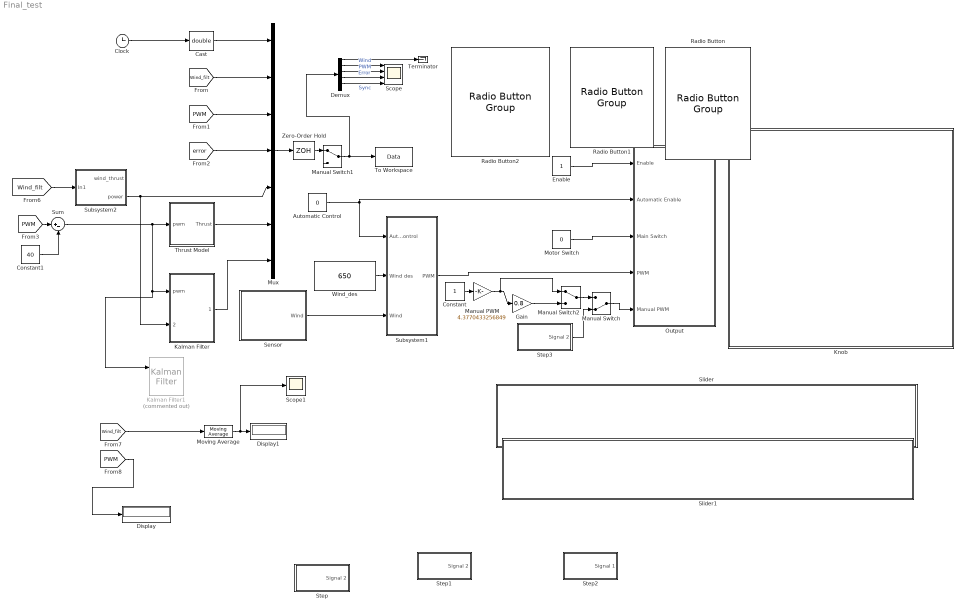
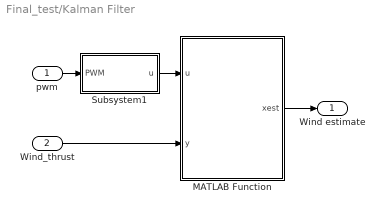
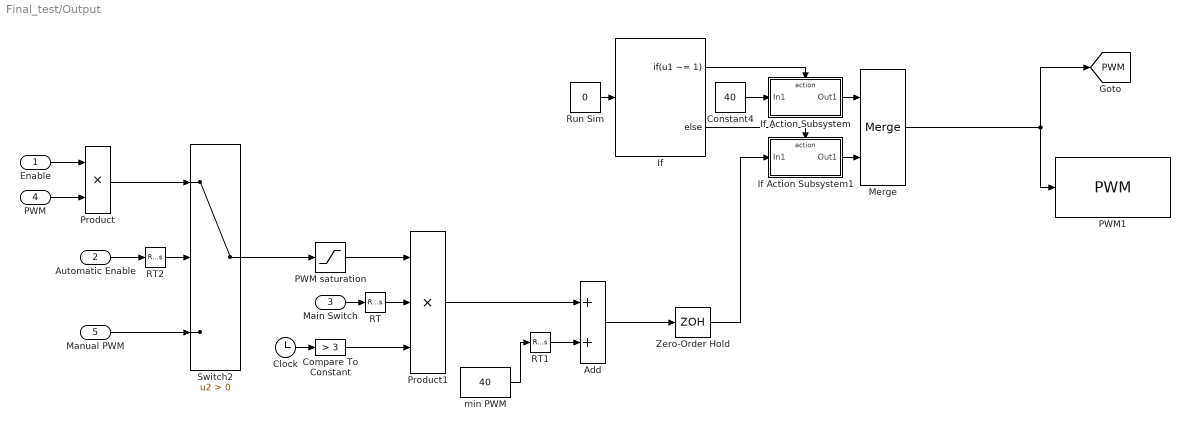
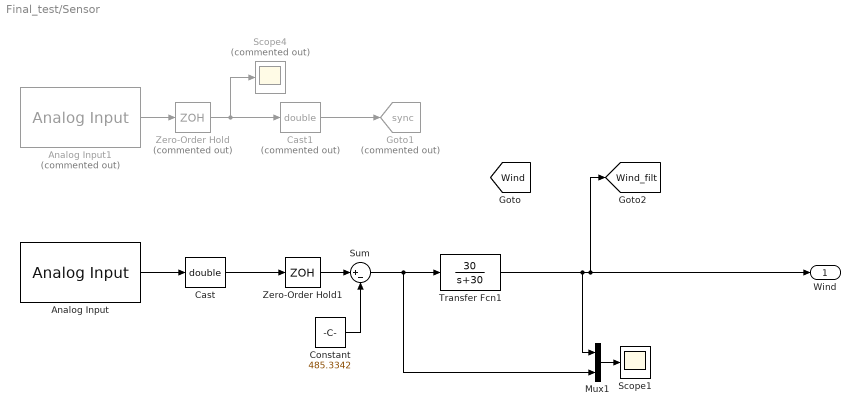
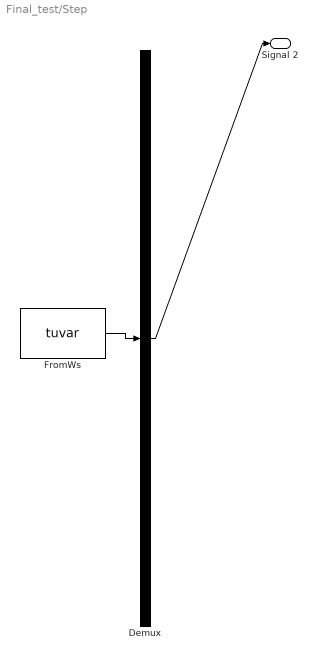
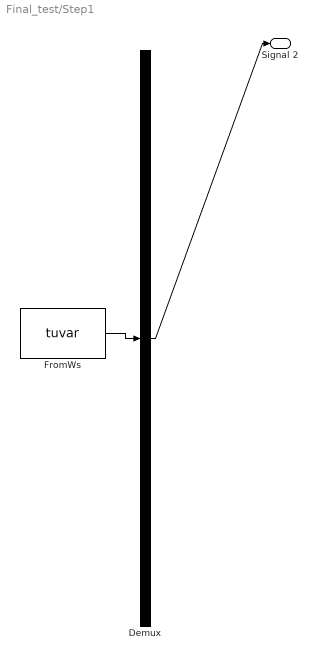
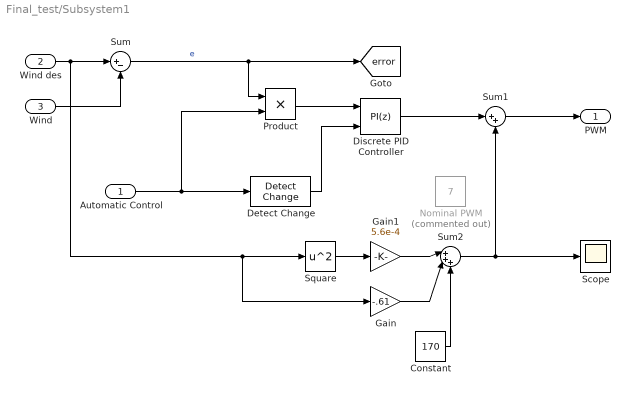
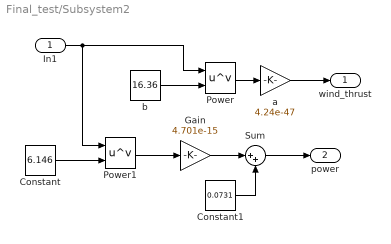
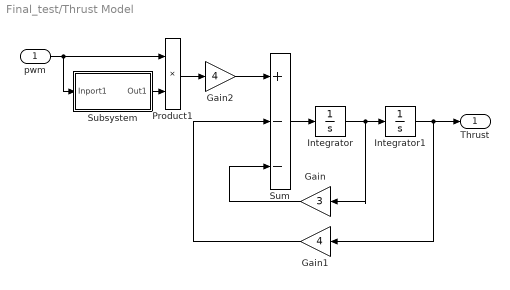
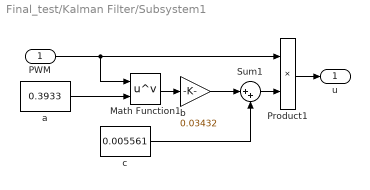
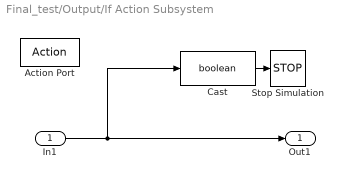
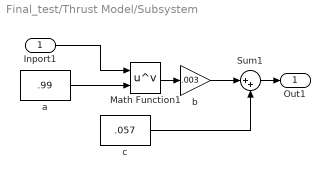
== system Final_test/Knob ==

== system Final_test/Slider ==

== system Final_test/Slider1 ==

== system Final_test/Step2 ==
  Demux : Demux  Tag=STV Demux  Outputs=1
  FromWs : FromWorkspace  Tag=STV FromWs  VariableName=tuvar  SampleTime=0
  Signal 1 : Outport  Tag=STV Outport
  wires:
  FromWs/1 -> Demux/1
  Demux/1 -> Signal 1/1

== system Final_test/Step3 ==
  Demux : Demux  Tag=STV Demux  Outputs=1
  FromWs : FromWorkspace  Tag=STV FromWs  VariableName=tuvar  SampleTime=0
  Signal 2 : Outport  Tag=STV Outport
  wires:
  FromWs/1 -> Demux/1
  Demux/1 -> Signal 2/1

== system Final_test/Output/If Action Subsystem1 ==
  In1 : Inport
  Action Port : ActionPort  ActionType=else
  Out1 : Outport
  wires:
  In1/1 -> Out1/1

== matlab function Final_test/Kalman Filter/MATLAB Function ==
function xest  = fcn(u, y)
persistent P xh
if isempty(P)
    P = eye(2);
    xh = zeros(2,1);
end
% A = [0 1; -4 -3];
% B = [0; 4];
% C = [1 0];

Ad = [0.9998  0.009851; -0.0394    0.9702];
Bd = [0.000198; 0.0394];
Cd = [1 0];

Q = 1;
R = diag([5,5]);


% Model information
xh_bar = Ad * xh + Bd * u;
P_bar = Ad * P * Ad' + R;

% Measurement update
K = P_bar * Cd' * (Cd * P_bar * Cd' + Q)^-1;
xh = xh_bar + K * (y - Cd * xh_bar);
P = (1 - K * Cd) * P_bar;

xest = xh;

/*
 * Final_test.c
 *
 * Academic License - for use in teaching, academic research, and meeting
 * course requirements at degree granting institutions only.  Not for
 * government, commercial, or other organizational use.
 *
 * Code generation for model "Final_test".
 *
 * Model version              : 1.42
 * Simulink Coder version : 8.14 (R2018a) 06-Feb-2018
 * C source code generated on : Fri Sep  7 12:34:04 2018
 *
 * Target selection: ert.tlc
 * Note: GRT includes extra infrastructure and instrumentation for prototyping
 * Embedded hardware selection: ARM Compatible->ARM Cortex
 * Code generation objectives: Unspecified
 * Validation result: Not run
 */

#include "Final_test.h"
#include "Final_test_private.h"
#include "Final_test_dt.h"

/* Block signals (default storage) */
B_Final_test_T Final_test_B;

/* Continuous states */
X_Final_test_T Final_test_X;

/* Block states (default storage) */
DW_Final_test_T Final_test_DW;

/* Real-time model */
RT_MODEL_Final_test_T Final_test_M_;
RT_MODEL_Final_test_T *const Final_test_M = &Final_test_M_;

/* Forward declaration for local functions */
static codertarget_arduinobase_int_f_T *arduino_PWMOutput_arduino_PWMOu
  (codertarget_arduinobase_int_f_T *obj);
static void SystemProp_matlabCodegenSetAnyP(dsp_simulink_MovingAverage_Fi_T *obj,
  boolean_T value);
static void Final_test_SystemCore_release(dsp_simulink_MovingAverage_Fi_T *obj);
static void Final_test_SystemCore_delete(dsp_simulink_MovingAverage_Fi_T *obj);
static void matlabCodegenHandle_matlabCodeg(dsp_simulink_MovingAverage_Fi_T *obj);
static void SystemProp_matlabCodegenSetA_fd(codertarget_arduinobase_in_fd_T *obj,
  boolean_T value);
static void matlabCodegenHandle_matlabCo_fd(codertarget_arduinobase_in_fd_T *obj);
static void SystemProp_matlabCodegenSetAn_f(codertarget_arduinobase_int_f_T *obj,
  boolean_T value);
static void matlabCodegenHandle_matlabCod_f(codertarget_arduinobase_int_f_T *obj);

/*
 * This function updates continuous states using the ODE3 fixed-step
 * solver algorithm
 */
static void rt_ertODEUpdateContinuousStates(RTWSolverInfo *si )
{
  /* Solver Matrices */
  static const real_T rt_ODE3_A[3] = {
    1.0/2.0, 3.0/4.0, 1.0
  };

  static const real_T rt_ODE3_B[3][3] = {
    { 1.0/2.0, 0.0, 0.0 },

    { 0.0, 3.0/4.0, 0.0 },

    { 2.0/9.0, 1.0/3.0, 4.0/9.0 }
  };

  time_T t = rtsiGetT(si);
  time_T tnew = rtsiGetSolverStopTime(si);
  time_T h = rtsiGetStepSize(si);
  real_T *x = rtsiGetContStates(si);
  ODE3_IntgData *id = (ODE3_IntgData *)rtsiGetSolverData(si);
  real_T *y = id->y;
  real_T *f0 = id->f[0];
  real_T *f1 = id->f[1];
  real_T *f2 = id->f[2];
  real_T hB[3];
  int_T i;
  int_T nXc = 3;
  rtsiSetSimTimeStep(si,MINOR_TIME_STEP);

  /* Save the state values at time t in y, we'll use x as ynew. */
  (void) memcpy(y, x,
                (uint_T)nXc*sizeof(real_T));

  /* Assumes that rtsiSetT and ModelOutputs are up-to-date */
  /* f0 = f(t,y) */
  rtsiSetdX(si, f0);
  Final_test_derivatives();

  /* f(:,2) = feval(odefile, t + hA(1), y + f*hB(:,1), args(:)(*)); */
  hB[0] = h * rt_ODE3_B[0][0];
  for (i = 0; i < nXc; i++) {
    x[i] = y[i] + (f0[i]*hB[0]);
  }

  rtsiSetT(si, t + h*rt_ODE3_A[0]);
  rtsiSetdX(si, f1);
  Final_test_step();
  Final_test_derivatives();

  /* f(:,3) = feval(odefile, t + hA(2), y + f*hB(:,2), args(:)(*)); */
  for (i = 0; i <= 1; i++) {
    hB[i] = h * rt_ODE3_B[1][i];
  }

  for (i = 0; i < nXc; i++) {
    x[i] = y[i] + (f0[i]*hB[0] + f1[i]*hB[1]);
  }

  rtsiSetT(si, t + h*rt_ODE3_A[1]);
  rtsiSetdX(si, f2);
  Final_test_step();
  Final_test_derivatives();

  /* tnew = t + hA(3);
     ynew = y + f*hB(:,3); */
  for (i = 0; i <= 2; i++) {
    hB[i] = h * rt_ODE3_B[2][i];
  }

  for (i = 0; i < nXc; i++) {
    x[i] = y[i] + (f0[i]*hB[0] + f1[i]*hB[1] + f2[i]*hB[2]);
  }

  rtsiSetT(si, tnew);
  rtsiSetSimTimeStep(si,MAJOR_TIME_STEP);
}

static codertarget_arduinobase_int_f_T *arduino_PWMOutput_arduino_PWMOu
  (codertarget_arduinobase_int_f_T *obj)
{
  codertarget_arduinobase_int_f_T *b_obj;

  /* Start for MATLABSystem: '<S3>/PWM1' */
  obj->isInitialized = 0;
  b_obj = obj;
  obj->Hw.AvailablePwmPinNames.f1 = '2';
  obj->Hw.AvailablePwmPinNames.f2 = '3';
  obj->Hw.AvailablePwmPinNames.f3 = '4';
  obj->Hw.AvailablePwmPinNames.f4 = '5';
  obj->Hw.AvailablePwmPinNames.f5 = '6';
  obj->Hw.AvailablePwmPinNames.f6 = '7';
  obj->Hw.AvailablePwmPinNames.f7 = '8';
  obj->Hw.AvailablePwmPinNames.f8 = '9';
  obj->Hw.AvailablePwmPinNames.f9[0] = '1';
  obj->Hw.AvailablePwmPinNames.f9[1] = '0';
  obj->Hw.AvailablePwmPinNames.f10[0] = '1';
  obj->Hw.AvailablePwmPinNames.f10[1] = '1';
  obj->Hw.AvailablePwmPinNames.f11[0] = '1';
  obj->Hw.AvailablePwmPinNames.f11[1] = '2';
  obj->Hw.AvailablePwmPinNames.f12[0] = '1';
  obj->Hw.AvailablePwmPinNames.f12[1] = '3';
  obj->matlabCodegenIsDeleted = false;
  return b_obj;
}

real_T rt_powd_snf(real_T u0, real_T u1)
{
  real_T y;
  real_T tmp;
  real_T tmp_0;
  if (rtIsNaN(u0) || rtIsNaN(u1)) {
    y = (rtNaN);
  } else {
    tmp = fabs(u0);
    tmp_0 = fabs(u1);
    if (rtIsInf(u1)) {
      if (tmp == 1.0) {
        y = 1.0;
      } else if (tmp > 1.0) {
        if (u1 > 0.0) {
          y = (rtInf);
        } else {
          y = 0.0;
        }
      } else if (u1 > 0.0) {
        y = 0.0;
      } else {
        y = (rtInf);
      }
    } else if (tmp_0 == 0.0) {
      y = 1.0;
    } else if (tmp_0 == 1.0) {
      if (u1 > 0.0) {
        y = u0;
      } else {
        y = 1.0 / u0;
      }
    } else if (u1 == 2.0) {
      y = u0 * u0;
    } else if ((u1 == 0.5) && (u0 >= 0.0)) {
      y = sqrt(u0);
    } else if ((u0 < 0.0) && (u1 > floor(u1))) {
      y = (rtNaN);
    } else {
      y = pow(u0, u1);
    }
  }

  return y;
}

static void SystemProp_matlabCodegenSetAnyP(dsp_simulink_MovingAverage_Fi_T *obj,
  boolean_T value)
{
  /* Start for MATLABSystem: '<Root>/Moving Average' */
  obj->matlabCodegenIsDeleted = value;
}

static void Final_test_SystemCore_release(dsp_simulink_MovingAverage_Fi_T *obj)
{
  dsp_private_SlidingWindowAver_T *obj_0;

  /* Start for MATLABSystem: '<Root>/Moving Average' */
  if ((obj->isInitialized == 1) && obj->isSetupComplete) {
    obj_0 = obj->pStatistic;
    if (obj_0->isInitialized == 1) {
      obj_0->isInitialized = 2;
    }

    obj->NumChannels = -1;
  }

  /* End of Start for MATLABSystem: '<Root>/Moving Average' */
}

static void Final_test_SystemCore_delete(dsp_simulink_MovingAverage_Fi_T *obj)
{
  /* Start for MATLABSystem: '<Root>/Moving Average' */
  Final_test_SystemCore_release(obj);
}

static void matlabCodegenHandle_matlabCodeg(dsp_simulink_MovingAverage_Fi_T *obj)
{
  /* Start for MATLABSystem: '<Root>/Moving Average' */
  if (!obj->matlabCodegenIsDeleted) {
    SystemProp_matlabCodegenSetAnyP(obj, true);
    Final_test_SystemCore_delete(obj);
  }

  /* End of Start for MATLABSystem: '<Root>/Moving Average' */
}

static void SystemProp_matlabCodegenSetA_fd(codertarget_arduinobase_in_fd_T *obj,
  boolean_T value)
{
  /* Start for MATLABSystem: '<S4>/Analog Input' */
  obj->matlabCodegenIsDeleted = value;
}

static void matlabCodegenHandle_matlabCo_fd(codertarget_arduinobase_in_fd_T *obj)
{
  /* Start for MATLABSystem: '<S4>/Analog Input' */
  if (!obj->matlabCodegenIsDeleted) {
    SystemProp_matlabCodegenSetA_fd(obj, true);
  }

  /* End of Start for MATLABSystem: '<S4>/Analog Input' */
}

static void SystemProp_matlabCodegenSetAn_f(codertarget_arduinobase_int_f_T *obj,
  boolean_T value)
{
  /* Start for MATLABSystem: '<S3>/PWM1' */
  obj->matlabCodegenIsDeleted = value;
}

static void matlabCodegenHandle_matlabCod_f(codertarget_arduinobase_int_f_T *obj)
{
  /* Start for MATLABSystem: '<S3>/PWM1' */
  if (!obj->matlabCodegenIsDeleted) {
    SystemProp_matlabCodegenSetAn_f(obj, true);
  }

  /* End of Start for MATLABSystem: '<S3>/PWM1' */
}

/* Model step function */
void Final_test_step(void)
{
  /* local block i/o variables */
  real_T rtb_FromWs;
  real_T rtb_IntegralGain;
  boolean_T rtb_FixPtRelationalOperator;
  int8_T R[4];
  static const real_T a[4] = { 0.9998, -0.0394, 0.009851, 0.9702 };

  static const real_T b_b[4] = { 0.9998, 0.009851, -0.0394, 0.9702 };

  uint16_T rtb_AnalogInput_0;
  boolean_T p;
  boolean_T p_0;
  real_T rtb_PWMsaturation;
  real_T rtb_Product1;
  int32_T i;
  if (rtmIsMajorTimeStep(Final_test_M)) {
    /* set solver stop time */
    if (!(Final_test_M->Timing.clockTick0+1)) {
      rtsiSetSolverStopTime(&Final_test_M->solverInfo,
                            ((Final_test_M->Timing.clockTickH0 + 1) *
        Final_test_M->Timing.stepSize0 * 4294967296.0));
    } else {
      rtsiSetSolverStopTime(&Final_test_M->solverInfo,
                            ((Final_test_M->Timing.clockTick0 + 1) *
        Final_test_M->Timing.stepSize0 + Final_test_M->Timing.clockTickH0 *
        Final_test_M->Timing.stepSize0 * 4294967296.0));
    }
  }                                    /* end MajorTimeStep */

  /* Update absolute time of base rate at minor time step */
  if (rtmIsMinorTimeStep(Final_test_M)) {
    Final_test_M->Timing.t[0] = rtsiGetT(&Final_test_M->solverInfo);
  }

  /* Reset subsysRan breadcrumbs */
  srClearBC(Final_test_DW.IfActionSubsystem_SubsysRanBC);

  /* Reset subsysRan breadcrumbs */
  srClearBC(Final_test_DW.IfActionSubsystem1_SubsysRanBC);

  /* TransferFcn: '<S4>/Transfer Fcn1' */
  Final_test_B.TransferFcn1 = 0.0;
  Final_test_B.TransferFcn1 += Final_test_P.TransferFcn1_C *
    Final_test_X.TransferFcn1_CSTATE;

  /* Sum: '<S9>/Sum' incorporates:
   *  Constant: '<Root>/Wind_des'
   */
  Final_test_B.e = Final_test_P.Wind_des_Value - Final_test_B.TransferFcn1;

  /* Product: '<S9>/Product' incorporates:
   *  Constant: '<Root>/Automatic Control'
   */
  Final_test_B.Product = Final_test_B.e * Final_test_P.AutomaticControl_Value;
  if (rtmIsMajorTimeStep(Final_test_M)) {
    /* RelationalOperator: '<S55>/FixPt Relational Operator' incorporates:
     *  Constant: '<Root>/Automatic Control'
     *  UnitDelay: '<S55>/Delay Input1'
     */
    rtb_FixPtRelationalOperator = (Final_test_P.AutomaticControl_Value !=
      Final_test_DW.DelayInput1_DSTATE);

    /* DiscreteIntegrator: '<S56>/Integrator' */
    if (rtb_FixPtRelationalOperator && (Final_test_DW.Integrator_PrevResetState <=
         0)) {
      Final_test_DW.Integrator_DSTATE = Final_test_P.Integrator_IC;
    }

    /* Sum: '<S9>/Sum2' incorporates:
     *  Constant: '<Root>/Wind_des'
     *  Constant: '<S9>/Constant'
     *  Gain: '<S9>/Gain'
     *  Gain: '<S9>/Gain1'
     *  Math: '<S9>/Square'
     */
    Final_test_B.Sum2 = (Final_test_P.Wind_des_Value *
                         Final_test_P.Wind_des_Value * Final_test_P.Gain1_Gain +
                         Final_test_P.Gain_Gain_g * Final_test_P.Wind_des_Value)
      + Final_test_P.Constant_Value;

    /* Product: '<S3>/Product' incorporates:
     *  Constant: '<Root>/Enable'
     *  DiscreteIntegrator: '<S56>/Integrator'
     *  Gain: '<S56>/Proportional Gain'
     *  Sum: '<S56>/Sum'
     *  Sum: '<S9>/Sum1'
     */
    Final_test_B.Product_m = ((Final_test_P.DiscretePIDController_P *
      Final_test_B.Product + Final_test_DW.Integrator_DSTATE) +
      Final_test_B.Sum2) * Final_test_P.Enable_Value;

    /* ManualSwitch: '<Root>/Manual Switch2' incorporates:
     *  Constant: '<Root>/Constant'
     *  Gain: '<Root>/Gain'
     *  Gain: '<Root>/Manual PWM'
     */
    if (Final_test_P.ManualSwitch2_CurrentSetting == 1) {
      Final_test_B.ManualSwitch2 = Final_test_P.ManualPWM_Gain *
        Final_test_P.Constant_Value_j;
    } else {
      Final_test_B.ManualSwitch2 = Final_test_P.ManualPWM_Gain *
        Final_test_P.Constant_Value_j * Final_test_P.Gain_Gain;
    }

    /* End of ManualSwitch: '<Root>/Manual Switch2' */
  }

  /* FromWorkspace: '<S8>/FromWs' */
  {
    real_T *pDataValues = (real_T *) Final_test_DW.FromWs_PWORK.DataPtr;
    real_T *pTimeValues = (real_T *) Final_test_DW.FromWs_PWORK.TimePtr;
    int_T currTimeIndex = Final_test_DW.FromWs_IWORK.PrevIndex;
    real_T t = Final_test_M->Timing.t[0];

    /* Get index */
    if (t <= pTimeValues[0]) {
      currTimeIndex = 0;
    } else if (t >= pTimeValues[26]) {
      currTimeIndex = 25;
    } else {
      if (t < pTimeValues[currTimeIndex]) {
        while (t < pTimeValues[currTimeIndex]) {
          currTimeIndex--;
        }
      } else {
        while (t >= pTimeValues[currTimeIndex + 1]) {
          currTimeIndex++;
        }
      }
    }

    Final_test_DW.FromWs_IWORK.PrevIndex = currTimeIndex;

    /* Post output */
    {
      real_T t1 = pTimeValues[currTimeIndex];
      real_T t2 = pTimeValues[currTimeIndex + 1];
      if (t1 == t2) {
        if (t < t1) {
          rtb_FromWs = pDataValues[currTimeIndex];
        } else {
          rtb_FromWs = pDataValues[currTimeIndex + 1];
        }
      } else {
        real_T f1 = (t2 - t) / (t2 - t1);
        real_T f2 = 1.0 - f1;
        real_T d1;
        real_T d2;
        int_T TimeIndex= currTimeIndex;
        d1 = pDataValues[TimeIndex];
        d2 = pDataValues[TimeIndex + 1];
        rtb_FromWs = (real_T) rtInterpolate(d1, d2, f1, f2);
        pDataValues += 27;
      }
    }
  }

  /* Switch: '<S3>/Switch2' incorporates:
   *  Constant: '<Root>/Automatic Control'
   *  ManualSwitch: '<Root>/Manual Switch'
   */
  if (Final_test_P.AutomaticControl_Value > Final_test_P.Switch2_Threshold) {
    rtb_PWMsaturation = Final_test_B.Product_m;
  } else if (Final_test_P.ManualSwitch_CurrentSetting == 1) {
    /* ManualSwitch: '<Root>/Manual Switch' */
    rtb_PWMsaturation = Final_test_B.ManualSwitch2;
  } else {
    rtb_PWMsaturation = rtb_FromWs;
  }

  /* End of Switch: '<S3>/Switch2' */

  /* Saturate: '<S3>/PWM saturation' */
  if (rtb_PWMsaturation > Final_test_P.PWMsaturation_UpperSat) {
    rtb_PWMsaturation = Final_test_P.PWMsaturation_UpperSat;
  } else {
    if (rtb_PWMsaturation < Final_test_P.PWMsaturation_LowerSat) {
      rtb_PWMsaturation = Final_test_P.PWMsaturation_LowerSat;
    }
  }

  /* End of Saturate: '<S3>/PWM saturation' */

  /* Sum: '<S3>/Add' incorporates:
   *  Clock: '<S3>/Clock'
   *  Constant: '<Root>/Motor Switch'
   *  Constant: '<S3>/min PWM'
   *  Constant: '<S52>/Constant'
   *  Product: '<S3>/Product1'
   *  RelationalOperator: '<S52>/Compare'
   */
  Final_test_B.Add = rtb_PWMsaturation * Final_test_P.MotorSwitch_Value *
    (real_T)(Final_test_M->Timing.t[0] > Final_test_P.CompareToConstant_const) +
    Final_test_P.minPWM_Value;
  if (rtmIsMajorTimeStep(Final_test_M)) {
    /* If: '<S3>/If' incorporates:
     *  Constant: '<S3>/Run Sim'
     *  Inport: '<S54>/In1'
     *  ZeroOrderHold: '<S3>/Zero-Order Hold'
     */
    if (rtmIsMajorTimeStep(Final_test_M)) {
      Final_test_DW.If_ActiveSubsystem = (int8_T)!(Final_test_P.RunSim_Value !=
        1.0);
    }

    switch (Final_test_DW.If_ActiveSubsystem) {
     case 0:
      /* Outputs for IfAction SubSystem: '<S3>/If Action Subsystem' incorporates:
       *  ActionPort: '<S53>/Action Port'
       */
      /* Stop: '<S53>/Stop Simulation' incorporates:
       *  Constant: '<S3>/Constant4'
       *  DataTypeConversion: '<S53>/Cast'
       */
      if (Final_test_P.Constant4_Value != 0.0) {
        rtmSetStopRequested(Final_test_M, 1);
      }

      /* End of Stop: '<S53>/Stop Simulation' */

      /* SignalConversion: '<S53>/OutportBufferForOut1' incorporates:
       *  Constant: '<S3>/Constant4'
       */
      Final_test_B.Merge = Final_test_P.Constant4_Value;
      if (rtmIsMajorTimeStep(Final_test_M)) {
        srUpdateBC(Final_test_DW.IfActionSubsystem_SubsysRanBC);
      }

      /* End of Outputs for SubSystem: '<S3>/If Action Subsystem' */
      break;

     case 1:
      /* Outputs for IfAction SubSystem: '<S3>/If Action Subsystem1' incorporates:
       *  ActionPort: '<S54>/Action Port'
       */
      Final_test_B.Merge = Final_test_B.Add;
      if (rtmIsMajorTimeStep(Final_test_M)) {
        srUpdateBC(Final_test_DW.IfActionSubsystem1_SubsysRanBC);
      }

      /* End of Outputs for SubSystem: '<S3>/If Action Subsystem1' */
      break;
    }

    /* End of If: '<S3>/If' */
  }

  /* Clock: '<Root>/Clock' */
  Final_test_B.Clock = Final_test_M->Timing.t[0];

  /* Math: '<S10>/Power1' incorporates:
   *  Constant: '<S10>/Constant'
   */
  if ((Final_test_B.TransferFcn1 < 0.0) && (Final_test_P.Constant_Value_n >
       floor(Final_test_P.Constant_Value_n))) {
    rtb_PWMsaturation = -rt_powd_snf(-Final_test_B.TransferFcn1,
      Final_test_P.Constant_Value_n);
  } else {
    rtb_PWMsaturation = rt_powd_snf(Final_test_B.TransferFcn1,
      Final_test_P.Constant_Value_n);
  }

  /* End of Math: '<S10>/Power1' */

  /* Sum: '<S10>/Sum' incorporates:
   *  Constant: '<S10>/Constant1'
   *  Gain: '<S10>/Gain'
   */
  Final_test_B.Sum = Final_test_P.Gain_Gain_j * rtb_PWMsaturation +
    Final_test_P.Constant1_Value;

  /* Integrator: '<S11>/Integrator1' */
  Final_test_B.Integrator1 = Final_test_X.Integrator1_CSTATE;
  if (rtmIsMajorTimeStep(Final_test_M)) {
    /* Sum: '<Root>/Sum' incorporates:
     *  Constant: '<Root>/Constant1'
     */
    rtb_PWMsaturation = Final_test_B.Merge - Final_test_P.Constant1_Value_i;

    /* Math: '<S13>/Math Function1' incorporates:
     *  Constant: '<S13>/a'
     */
    if ((rtb_PWMsaturation < 0.0) && (Final_test_P.a_Value > floor
         (Final_test_P.a_Value))) {
      rtb_Product1 = -rt_powd_snf(-rtb_PWMsaturation, Final_test_P.a_Value);
    } else {
      rtb_Product1 = rt_powd_snf(rtb_PWMsaturation, Final_test_P.a_Value);
    }

    /* End of Math: '<S13>/Math Function1' */

    /* Product: '<S13>/Product1' incorporates:
     *  Constant: '<S13>/c'
     *  Gain: '<S13>/b'
     *  Sum: '<S13>/Sum1'
     */
    rtb_Product1 = (Final_test_P.b_Gain * rtb_Product1 + Final_test_P.c_Value) *
      rtb_PWMsaturation;

    /* MATLAB Function: '<S1>/MATLAB Function' */
    R[0] = 0;
    R[1] = 0;
    R[2] = 0;
    R[3] = 0;
    for (i = 0; i < 2; i++) {
      R[i + (i << 1)] = 5;
      Final_test_B.a[i] = 0.0;
      Final_test_B.a[i] += a[i] * Final_test_DW.P[0];
      Final_test_B.a[i] += a[i + 2] * Final_test_DW.P[1];
      Final_test_B.a[i + 2] = 0.0;
      Final_test_B.a[i + 2] += a[i] * Final_test_DW.P[2];
      Final_test_B.a[i + 2] += a[i + 2] * Final_test_DW.P[3];
      Final_test_B.xh_bar[i] = (a[i + 2] * Final_test_DW.xh[1] + a[i] *
        Final_test_DW.xh[0]) + (0.039202 * (real_T)i + 0.000198) * rtb_Product1;
    }

    for (i = 0; i < 2; i++) {
      Final_test_B.P_bar[i << 1] = (b_b[(i << 1) + 1] * Final_test_B.a[2] +
        b_b[i << 1] * Final_test_B.a[0]) + (real_T)R[i << 1];
      Final_test_B.P_bar[1 + (i << 1)] = (b_b[(i << 1) + 1] * Final_test_B.a[3]
        + b_b[i << 1] * Final_test_B.a[1]) + (real_T)R[(i << 1) + 1];
    }

    rtb_Product1 = 1.0 / (((0.0 * Final_test_B.P_bar[3] + Final_test_B.P_bar[2])
      * 0.0 + (0.0 * Final_test_B.P_bar[1] + Final_test_B.P_bar[0])) + 1.0);
    Final_test_B.K[0] = (Final_test_B.P_bar[2] * 0.0 + Final_test_B.P_bar[0]) *
      rtb_Product1;
    Final_test_B.K[1] = (Final_test_B.P_bar[3] * 0.0 + Final_test_B.P_bar[1]) *
      rtb_Product1;
    rtb_Product1 = Final_test_B.Sum - (0.0 * Final_test_B.xh_bar[1] +
      Final_test_B.xh_bar[0]);

    /* ManualSwitch: '<Root>/Manual Switch1' incorporates:
     *  ZeroOrderHold: '<Root>/Zero-Order Hold'
     */
    if (Final_test_P.ManualSwitch1_CurrentSetting == 1) {
      Final_test_B.ManualSwitch1[0] = Final_test_B.Clock;
      Final_test_B.ManualSwitch1[1] = Final_test_B.TransferFcn1;
      Final_test_B.ManualSwitch1[2] = Final_test_B.Merge;
      Final_test_B.ManualSwitch1[3] = Final_test_B.e;
      Final_test_B.ManualSwitch1[4] = Final_test_B.Sum;
      Final_test_B.ManualSwitch1[5] = Final_test_B.Integrator1;
    } else {
      Final_test_B.ManualSwitch1[0] = 0.0;
      Final_test_B.ManualSwitch1[1] = 0.0;
      Final_test_B.ManualSwitch1[2] = 0.0;
      Final_test_B.ManualSwitch1[3] = 0.0;
      Final_test_B.ManualSwitch1[4] = 0.0;
      Final_test_B.ManualSwitch1[5] = 0.0;
    }

    for (i = 0; i < 2; i++) {
      /* MATLAB Function: '<S1>/MATLAB Function' */
      Final_test_DW.xh[i] = Final_test_B.K[i] * rtb_Product1 +
        Final_test_B.xh_bar[i];
      Final_test_B.a[i] = 1.0 - Final_test_B.K[i];
      Final_test_B.a[i + 2] = 1.0 - Final_test_B.K[i] * 0.0;
      Final_test_DW.P[i] = 0.0;
      Final_test_DW.P[i] += Final_test_B.a[i] * Final_test_B.P_bar[0];
      Final_test_DW.P[i] += Final_test_B.a[i + 2] * Final_test_B.P_bar[1];
      Final_test_DW.P[i + 2] = 0.0;
      Final_test_DW.P[i + 2] += Final_test_B.a[i] * Final_test_B.P_bar[2];
      Final_test_DW.P[i + 2] += Final_test_B.a[i + 2] * Final_test_B.P_bar[3];

      /* ManualSwitch: '<Root>/Manual Switch1' incorporates:
       *  MATLAB Function: '<S1>/MATLAB Function'
       */
      if (Final_test_P.ManualSwitch1_CurrentSetting == 1) {
        Final_test_B.ManualSwitch1[i + 6] = Final_test_DW.xh[i];
      } else {
        Final_test_B.ManualSwitch1[i + 6] = 0.0;
      }
    }

    /* Math: '<S57>/Math Function1' incorporates:
     *  Constant: '<S57>/a'
     */
    if ((rtb_PWMsaturation < 0.0) && (Final_test_P.a_Value_d > floor
         (Final_test_P.a_Value_d))) {
      rtb_Product1 = -rt_powd_snf(-rtb_PWMsaturation, Final_test_P.a_Value_d);
    } else {
      rtb_Product1 = rt_powd_snf(rtb_PWMsaturation, Final_test_P.a_Value_d);
    }

    /* End of Math: '<S57>/Math Function1' */

    /* Gain: '<S11>/Gain2' incorporates:
     *  Constant: '<S57>/c'
     *  Gain: '<S57>/b'
     *  Product: '<S11>/Product1'
     *  Sum: '<S57>/Sum1'
     */
    Final_test_B.Gain2 = (Final_test_P.b_Gain_n * rtb_Product1 +
                          Final_test_P.c_Value_e) * rtb_PWMsaturation *
      Final_test_P.Gain2_Gain;
  }

  /* Integrator: '<S11>/Integrator' */
  Final_test_B.Integrator = Final_test_X.Integrator_CSTATE;

  /* Sum: '<S11>/Sum' incorporates:
   *  Gain: '<S11>/Gain'
   *  Gain: '<S11>/Gain1'
   */
  Final_test_B.Sum_k = (Final_test_B.Gain2 - Final_test_P.Gain1_Gain_h *
                        Final_test_B.Integrator1) - Final_test_P.Gain_Gain_n *
    Final_test_B.Integrator;
  if (rtmIsMajorTimeStep(Final_test_M)) {
    /* Gain: '<S56>/Integral Gain' */
    rtb_IntegralGain = Final_test_P.DiscretePIDController_I *
      Final_test_B.Product;
  }

  /* Start for MATLABSystem: '<Root>/Moving Average' */
  if (Final_test_DW.obj.TunablePropsChanged) {
    Final_test_DW.obj.TunablePropsChanged = false;
  }

  if (Final_test_DW.obj.pStatistic->isInitialized != 1) {
    Final_test_DW.obj.pStatistic->isSetupComplete = false;
    Final_test_DW.obj.pStatistic->isInitialized = 1;
    Final_test_DW.obj.pStatistic->pCumSum = 0.0;
    Final_test_DW.obj.pStatistic->pCumRevIndex = 1.0;
    Final_test_DW.obj.pStatistic->isSetupComplete = true;
    Final_test_DW.obj.pStatistic->pCumSum = 0.0;
    Final_test_DW.obj.pStatistic->pCumSumRev[0] = 0.0;
    Final_test_DW.obj.pStatistic->pCumSumRev[0] = 0.0;
    Final_test_DW.obj.pStatistic->pCumSumRev[1] = 0.0;
    Final_test_DW.obj.pStatistic->pCumSumRev[1] = 0.0;
    Final_test_DW.obj.pStatistic->pCumSumRev[2] = 0.0;
    Final_test_DW.obj.pStatistic->pCumSumRev[2] = 0.0;
    Final_test_DW.obj.pStatistic->pCumSumRev[3] = 0.0;
    Final_test_DW.obj.pStatistic->pCumSumRev[3] = 0.0;
    Final_test_DW.obj.pStatistic->pCumRevIndex = 1.0;
  }

  rtb_PWMsaturation = Final_test_DW.obj.pStatistic->pCumRevIndex;
  rtb_Product1 = Final_test_DW.obj.pStatistic->pCumSum;
  Final_test_B.P_bar[0] = Final_test_DW.obj.pStatistic->pCumSumRev[0];
  Final_test_B.P_bar[1] = Final_test_DW.obj.pStatistic->pCumSumRev[1];
  Final_test_B.P_bar[2] = Final_test_DW.obj.pStatistic->pCumSumRev[2];
  Final_test_B.P_bar[3] = Final_test_DW.obj.pStatistic->pCumSumRev[3];
  rtb_Product1 += Final_test_B.TransferFcn1;
  i = (int32_T)rtb_PWMsaturation - 1;
  Final_test_B.z = Final_test_B.P_bar[i] + rtb_Product1;
  Final_test_B.P_bar[i] = Final_test_B.TransferFcn1;
  if (rtb_PWMsaturation != 4.0) {
    rtb_PWMsaturation++;
  } else {
    rtb_PWMsaturation = 1.0;
    rtb_Product1 = 0.0;
    Final_test_B.P_bar[2] += Final_test_B.P_bar[3];
    Final_test_B.P_bar[1] += Final_test_B.P_bar[2];
    Final_test_B.P_bar[0] += Final_test_B.P_bar[1];
  }

  Final_test_DW.obj.pStatistic->pCumSum = rtb_Product1;
  Final_test_DW.obj.pStatistic->pCumSumRev[0] = Final_test_B.P_bar[0];
  Final_test_DW.obj.pStatistic->pCumSumRev[1] = Final_test_B.P_bar[1];
  Final_test_DW.obj.pStatistic->pCumSumRev[2] = Final_test_B.P_bar[2];
  Final_test_DW.obj.pStatistic->pCumSumRev[3] = Final_test_B.P_bar[3];
  Final_test_DW.obj.pStatistic->pCumRevIndex = rtb_PWMsaturation;

  /* MATLABSystem: '<Root>/Moving Average' */
  Final_test_B.MovingAverage = Final_test_B.z / 5.0;
  if (rtmIsMajorTimeStep(Final_test_M)) {
    /* Start for MATLABSystem: '<S4>/Analog Input' */
    p = false;
    p_0 = true;
    if (!(Final_test_DW.obj_g.SampleTime == Final_test_P.AnalogInput_SampleTime))
    {
      p_0 = false;
    }

    if (p_0) {
      p = true;
    }

    if (!p) {
      Final_test_DW.obj_g.SampleTime = Final_test_P.AnalogInput_SampleTime;
    }

    MW_AnalogIn_Start(Final_test_DW.obj_g.MW_ANALOGIN_HANDLE);
    MW_AnalogInSingle_ReadResult(Final_test_DW.obj_g.MW_ANALOGIN_HANDLE,
      &rtb_AnalogInput_0, 3);

    /* End of Start for MATLABSystem: '<S4>/Analog Input' */

    /* Sum: '<S4>/Sum' incorporates:
     *  Constant: '<S4>/Constant'
     *  DataTypeConversion: '<S4>/Cast'
     *  MATLABSystem: '<S4>/Analog Input'
     */
    Final_test_B.Sum_l = (real_T)rtb_AnalogInput_0 -
      Final_test_P.Constant_Value_p;

    /* Start for MATLABSystem: '<S3>/PWM1' */
    MW_PWM_SetDutyCycle(Final_test_DW.obj_n.MW_PWM_HANDLE, Final_test_B.Merge);
  }

  if (rtmIsMajorTimeStep(Final_test_M)) {
    if (rtmIsMajorTimeStep(Final_test_M)) {
      /* Update for UnitDelay: '<S55>/Delay Input1' incorporates:
       *  Constant: '<Root>/Automatic Control'
       */
      Final_test_DW.DelayInput1_DSTATE = Final_test_P.AutomaticControl_Value;

      /* Update for DiscreteIntegrator: '<S56>/Integrator' */
      Final_test_DW.Integrator_DSTATE += Final_test_P.Integrator_gainval *
        rtb_IntegralGain;
      Final_test_DW.Integrator_PrevResetState = (int8_T)
        rtb_FixPtRelationalOperator;
    }

    /* External mode */
    rtExtModeUploadCheckTrigger(2);

    {                                  /* Sample time: [0.0s, 0.0s] */
      rtExtModeUpload(0, Final_test_M->Timing.t[0]);
    }

    if (rtmIsMajorTimeStep(Final_test_M)) {/* Sample time: [0.01s, 0.0s] */
      rtExtModeUpload(1, (((Final_test_M->Timing.clockTick1+
                            Final_test_M->Timing.clockTickH1* 4294967296.0)) *
                          0.01));
    }
  }                                    /* end MajorTimeStep */

  if (rtmIsMajorTimeStep(Final_test_M)) {
    /* signal main to stop simulation */
    {                                  /* Sample time: [0.0s, 0.0s] */
      if ((rtmGetTFinal(Final_test_M)!=-1) &&
          !((rtmGetTFinal(Final_test_M)-(((Final_test_M->Timing.clockTick1+
               Final_test_M->Timing.clockTickH1* 4294967296.0)) * 0.01)) >
            (((Final_test_M->Timing.clockTick1+Final_test_M->Timing.clockTickH1*
               4294967296.0)) * 0.01) * (DBL_EPSILON))) {
        rtmSetErrorStatus(Final_test_M, "Simulation finished");
      }

      if (rtmGetStopRequested(Final_test_M)) {
        rtmSetErrorStatus(Final_test_M, "Simulation finished");
      }
    }

    rt_ertODEUpdateContinuousStates(&Final_test_M->solverInfo);

    /* Update absolute time for base rate */
    /* The "clockTick0" counts the number of times the code of this task has
     * been executed. The absolute time is the multiplication of "clockTick0"
     * and "Timing.stepSize0". Size of "clockTick0" ensures timer will not
     * overflow during the application lifespan selected.
     * Timer of this task consists of two 32 bit unsigned integers.
     * The two integers represent the low bits Timing.clockTick0 and the high bits
     * Timing.clockTickH0. When the low bit overflows to 0, the high bits increment.
     */
    if (!(++Final_test_M->Timing.clockTick0)) {
      ++Final_test_M->Timing.clockTickH0;
    }

    Final_test_M->Timing.t[0] = rtsiGetSolverStopTime(&Final_test_M->solverInfo);

    {
      /* Update absolute timer for sample time: [0.01s, 0.0s] */
      /* The "clockTick1" counts the number of times the code of this task has
       * been executed. The resolution of this integer timer is 0.01, which is the step size
       * of the task. Size of "clockTick1" ensures timer will not overflow during the
       * application lifespan selected.
       * Timer of this task consists of two 32 bit unsigned integers.
       * The two integers represent the low bits Timing.clockTick1 and the high bits
       * Timing.clockTickH1. When the low bit overflows to 0, the high bits increment.
       */
      Final_test_M->Timing.clockTick1++;
      if (!Final_test_M->Timing.clockTick1) {
        Final_test_M->Timing.clockTickH1++;
      }
    }
  }                                    /* end MajorTimeStep */
}
